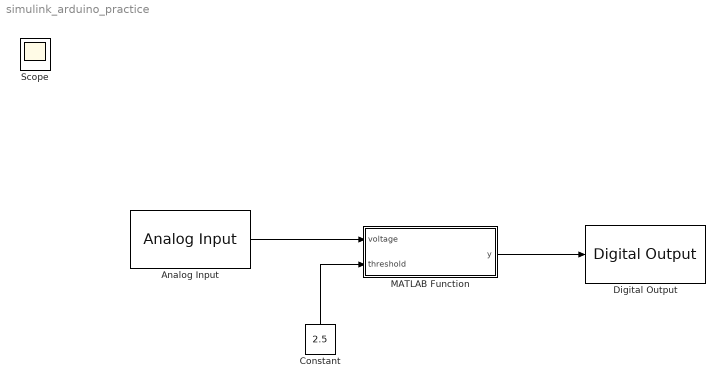
== matlab function simulink_arduino_practice/MATLAB Function ==
function y = fcn(voltage,threshold)
bins = 1023;
ref_v = 5;
voltage = ref_v/bins * voltage;
if voltage < threshold
            out = 0;
        else
            out = 1;
        end
y = out;

/*
 * Academic License - for use in teaching, academic research, and meeting
 * course requirements at degree granting institutions only.  Not for
 * government, commercial, or other organizational use.
 *
 * File: simulink_arduino_practice.c
 *
 * Code generated for Simulink model 'simulink_arduino_practice'.
 *
 * Model version                  : 1.9
 * Simulink Coder version         : 9.3 (R2020a) 18-Nov-2019
 * C/C++ source code generated on : Thu Sep 24 13:40:03 2020
 *
 * Target selection: ert.tlc
 * Embedded hardware selection: Atmel->AVR
 * Code generation objectives: Unspecified
 * Validation result: Not run
 */

#include "simulink_arduino_practice.h"
#include "simulink_arduino_practice_private.h"

/* Block states (default storage) */
DW_simulink_arduino_practice_T simulink_arduino_practice_DW;

/* Real-time model */
RT_MODEL_simulink_arduino_pra_T simulink_arduino_practice_M_;
RT_MODEL_simulink_arduino_pra_T *const simulink_arduino_practice_M =
  &simulink_arduino_practice_M_;

/* Forward declaration for local functions */
static void simulink_ard_SystemCore_release(codertarget_arduinobase_inter_T *obj);
static void simulink_ar_SystemCore_delete_i(codertarget_arduinobase_inter_T *obj);
static void matlabCodegenHandle_matlabCod_i(codertarget_arduinobase_inter_T *obj);
static void matlabCodegenHandle_matlabCodeg(codertarget_arduinobase_block_T *obj);
real_T rt_roundd_snf(real_T u)
{
  real_T y;
  if (fabs(u) < 4.503599627370496E+15) {
    if (u >= 0.5) {
      y = floor(u + 0.5);
    } else if (u > -0.5) {
      y = u * 0.0;
    } else {
      y = ceil(u - 0.5);
    }
  } else {
    y = u;
  }

  return y;
}

static void simulink_ard_SystemCore_release(codertarget_arduinobase_inter_T *obj)
{
  if ((obj->isInitialized == 1L) && obj->isSetupComplete) {
    obj->AnalogInDriverObj.MW_ANALOGIN_HANDLE = MW_AnalogIn_GetHandle(54UL);
    MW_AnalogIn_Close(obj->AnalogInDriverObj.MW_ANALOGIN_HANDLE);
  }
}

static void simulink_ar_SystemCore_delete_i(codertarget_arduinobase_inter_T *obj)
{
  simulink_ard_SystemCore_release(obj);
}

static void matlabCodegenHandle_matlabCod_i(codertarget_arduinobase_inter_T *obj)
{
  if (!obj->matlabCodegenIsDeleted) {
    obj->matlabCodegenIsDeleted = true;
    simulink_ar_SystemCore_delete_i(obj);
  }
}

static void matlabCodegenHandle_matlabCodeg(codertarget_arduinobase_block_T *obj)
{
  if (!obj->matlabCodegenIsDeleted) {
    obj->matlabCodegenIsDeleted = true;
  }
}

/* Model step function */
void simulink_arduino_practice_step(void)
{
  uint16_T rtb_AnalogInput_0;
  codertarget_arduinobase_inter_T *obj;

  /* MATLABSystem: '<Root>/Analog Input' */
  if (simulink_arduino_practice_DW.obj.SampleTime !=
      simulink_arduino_practice_P.AnalogInput_SampleTime) {
    simulink_arduino_practice_DW.obj.SampleTime =
      simulink_arduino_practice_P.AnalogInput_SampleTime;
  }

  obj = &simulink_arduino_practice_DW.obj;
  obj->AnalogInDriverObj.MW_ANALOGIN_HANDLE = MW_AnalogIn_GetHandle(54UL);
  MW_AnalogInSingle_ReadResult
    (simulink_arduino_practice_DW.obj.AnalogInDriverObj.MW_ANALOGIN_HANDLE,
     &rtb_AnalogInput_0, 3);

  /* MATLABSystem: '<Root>/Digital Output' incorporates:
   *  Constant: '<Root>/Constant'
   *  MATLAB Function: '<Root>/MATLAB Function'
   *  MATLABSystem: '<Root>/Analog Input'
   */
  writeDigitalPin(2, (uint8_T)!(rt_roundd_snf(0.0048875855327468231 * (real_T)
    rtb_AnalogInput_0) < simulink_arduino_practice_P.Constant_Value));
}
